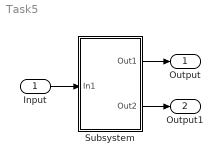
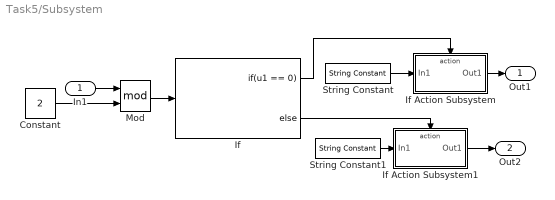
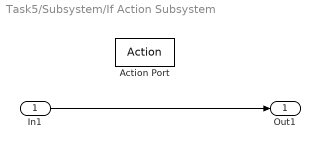
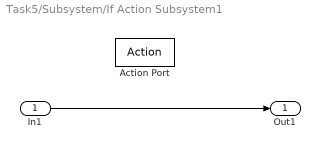
/*
 * File: Task5.c
 *
 * Code generated for Simulink model 'Task5'.
 *
 * Model version                  : 1.3
 * Simulink Coder version         : 9.5 (R2021a) 14-Nov-2020
 * C/C++ source code generated on : Tue Jan 30 14:25:57 2024
 *
 * Target selection: ert.tlc
 * Embedded hardware selection: Intel->x86-64 (Windows64)
 * Code generation objectives: Unspecified
 * Validation result: Not run
 */

#include "Task5.h"
#include "Task5_private.h"

/* External inputs (root inport signals with default storage) */
ExtU_Task5_T Task5_U;

/* External outputs (root outports fed by signals with default storage) */
ExtY_Task5_T Task5_Y;

/* Real-time model */
static RT_MODEL_Task5_T Task5_M_;
RT_MODEL_Task5_T *const Task5_M = &Task5_M_;
real_T rt_modd_snf(real_T u0, real_T u1)
{
  real_T q;
  real_T y;
  boolean_T yEq;
  y = u0;
  if (u1 == 0.0) {
    if (u0 == 0.0) {
      y = u1;
    }
  } else if (rtIsNaN(u0) || rtIsNaN(u1) || rtIsInf(u0)) {
    y = (rtNaN);
  } else if (u0 == 0.0) {
    y = 0.0 / u1;
  } else if (rtIsInf(u1)) {
    if ((u1 < 0.0) != (u0 < 0.0)) {
      y = u1;
    }
  } else {
    y = fmod(u0, u1);
    yEq = (y == 0.0);
    if ((!yEq) && (u1 > floor(u1))) {
      q = fabs(u0 / u1);
      yEq = !(fabs(q - floor(q + 0.5)) > DBL_EPSILON * q);
    }

    if (yEq) {
      y = u1 * 0.0;
    } else if ((u0 < 0.0) != (u1 < 0.0)) {
      y += u1;
    }
  }

  return y;
}

/* Model step function */
void Task5_step(void)
{
  /* If: '<S1>/If' incorporates:
   *  Constant: '<S1>/Constant'
   *  Inport: '<Root>/Input'
   *  Inport: '<S2>/In1'
   *  Inport: '<S3>/In1'
   *  Math: '<S1>/Mod'
   *  Outport: '<Root>/Output'
   *  Outport: '<Root>/Output1'
   */
  if (rt_modd_snf(Task5_U.Input, 2.0) == 0.0) {
    /* Outputs for IfAction SubSystem: '<S1>/If Action Subsystem' incorporates:
     *  ActionPort: '<S2>/Action Port'
     */
    strncpy(&Task5_Y.Output[0], &Task5_ConstB.StringConstant[0], 255U);

    /* End of Outputs for SubSystem: '<S1>/If Action Subsystem' */
    Task5_Y.Output[255] = '\x00';
  } else {
    /* Outputs for IfAction SubSystem: '<S1>/If Action Subsystem1' incorporates:
     *  ActionPort: '<S3>/Action Port'
     */
    strncpy(&Task5_Y.Output1[0], &Task5_ConstB.StringConstant1[0], 255U);

    /* End of Outputs for SubSystem: '<S1>/If Action Subsystem1' */
    Task5_Y.Output1[255] = '\x00';
  }

  /* End of If: '<S1>/If' */
}
